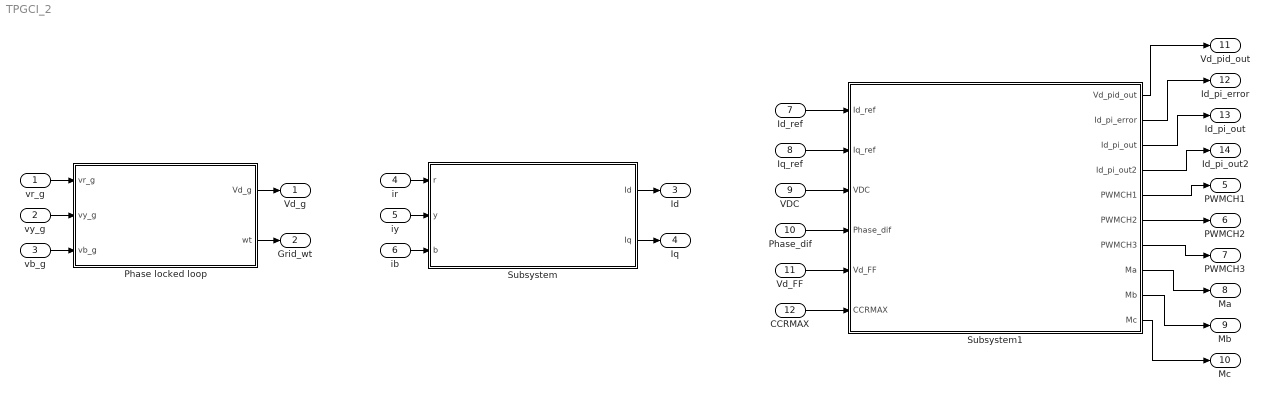
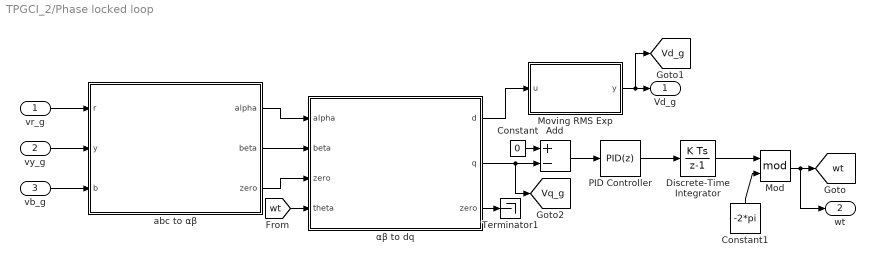
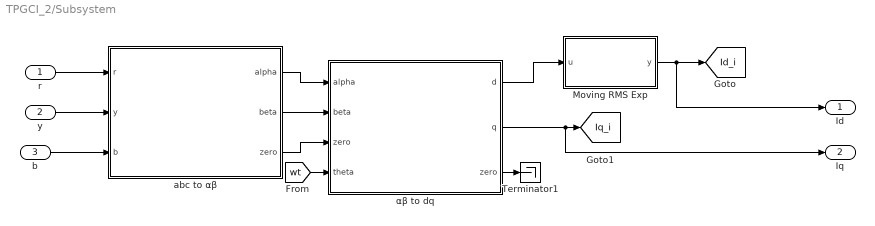
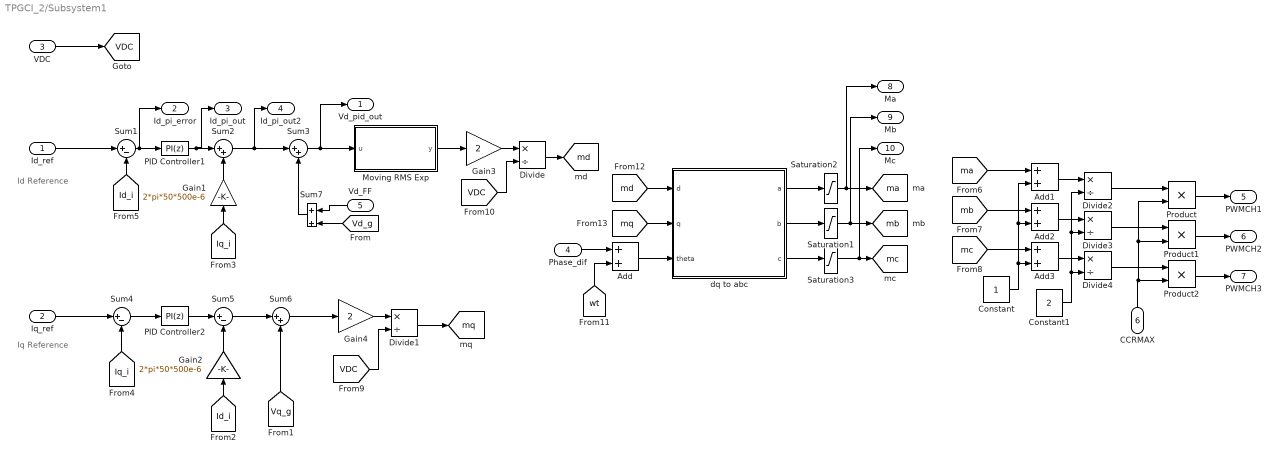
== matlab function TPGCI_2/Phase locked loop/αβ to dq ==
function [d, q, zero] = alphabeta_to_dq(alpha, beta, zero, theta) 
%ALPHABETA_TO_DQ Converts αβ0 voltages to dq0 using Park Transform
% Inputs:
%   v_alpha - Alpha axis voltage
%   v_beta  - Beta axis voltage
%   v_zero  - Zero sequence voltage
%   theta   - Rotational angle (radians)
% Outputs:
%   v_d     - Direct axis voltage
%   v_q     - Quadrature axis voltage
%   v_zero  - Zero sequence voltage (unchanged)

    % Precompute sine and cosine for efficiency
    cos_theta = cos(theta);
    sin_theta = sin(theta);

    % Compute dq0 components
    d =  alpha * cos_theta + beta * sin_theta;
    q = -alpha * sin_theta + beta * cos_theta;
    % v_zero remains the same
end

== matlab function TPGCI_2/Phase locked loop/abc to αβ ==
function [alpha, beta, zero] = abc_to_alphabeta(r, y, b) 
%#codegen
%ABC_TO_ALPHABETA Converts three-phase (ABC) voltages to αβ0 (Clark Transform)
% Inputs:
%   vr_g - Phase R voltage
%   vy_g - Phase Y voltage
%   vb_g - Phase B voltage
% Outputs:
%   v_alpha_g - Alpha axis voltage
%   v_beta_g  - Beta axis voltage
%   v_zero    - Zero sequence voltage
    % Precompute constants (avoiding divisions)
    k1 = 0.66666666667;  % 2/3
    k2 = 0.33333333333;  % 1/3
    k3 = 0.57735026919;  % sqrt(3)/3

    % Compute αβ0 components using direct arithmetic
    alpha = k1 * r - k2 * y - k2 * b;
    beta  = k3 * (y - b);
    zero    = k2 * (r + y + b);
end

== matlab function TPGCI_2/Phase locked loop/Moving RMS Exp ==
function y = movingRMSExp(u)
    % y = movingRMSExp(u, alpha)
    % This function computes the exponential moving RMS of the input signal `u`.
    % The parameter `alpha` is the smoothing factor (0 < alpha <= 1).
    % A higher `alpha` gives more weight to recent values.

    % Persistent variables to maintain state between calls
    persistent rmsSquared

    % Initialize the exponential moving RMS on the first call
    if isempty(rmsSquared)
        rmsSquared = u^2; % Initialize with the square of the first value

    end

    % Update the exponentially weighted RMS squared
    rmsSquared = 0.001 * u^2 + (1 - 0.001) * rmsSquared;

    % Compute the RMS as the square root of the weighted sum
    y = sqrt(rmsSquared);
end

== matlab function TPGCI_2/Subsystem/abc to αβ ==
function [alpha, beta, zero] = abc_to_alphabeta(r, y, b) 
%#codegen
%ABC_TO_ALPHABETA Converts three-phase (ABC) voltages to αβ0 (Clark Transform)
% Inputs:
%   vr_g - Phase R voltage
%   vy_g - Phase Y voltage
%   vb_g - Phase B voltage
% Outputs:
%   v_alpha_g - Alpha axis voltage
%   v_beta_g  - Beta axis voltage
%   v_zero    - Zero sequence voltage
    % Precompute constants (avoiding divisions)
    k1 = 0.66666666667;  % 2/3
    k2 = 0.33333333333;  % 1/3
    k3 = 0.57735026919;  % sqrt(3)/3

    % Compute αβ0 components using direct arithmetic
    alpha = k1 * r - k2 * y - k2 * b;
    beta  = k3 * (y - b);
    zero    = k2 * (r + y + b);
end

== matlab function TPGCI_2/Subsystem/αβ to dq ==
function [d, q, zero] = alphabeta_to_dq(alpha, beta, zero, theta) 
%ALPHABETA_TO_DQ Converts αβ0 voltages to dq0 using Park Transform
% Inputs:
%   v_alpha - Alpha axis voltage
%   v_beta  - Beta axis voltage
%   v_zero  - Zero sequence voltage
%   theta   - Rotational angle (radians)
% Outputs:
%   v_d     - Direct axis voltage
%   v_q     - Quadrature axis voltage
%   v_zero  - Zero sequence voltage (unchanged)

    % Precompute sine and cosine for efficiency
    cos_theta = cos(theta);
    sin_theta = sin(theta);

    % Compute dq0 components
    d =  alpha * cos_theta + beta * sin_theta;
    q = -alpha * sin_theta + beta * cos_theta;
    % v_zero remains the same
end

== matlab function TPGCI_2/Subsystem/Moving RMS Exp ==
function y = movingRMSExp(u)
    % y = movingRMSExp(u, alpha)
    % This function computes the exponential moving RMS of the input signal `u`.
    % The parameter `alpha` is the smoothing factor (0 < alpha <= 1).
    % A higher `alpha` gives more weight to recent values.

    % Persistent variables to maintain state between calls
    persistent rmsSquared

    % Initialize the exponential moving RMS on the first call
    if isempty(rmsSquared)
        rmsSquared = u^2; % Initialize with the square of the first value
    end

    % Update the exponentially weighted RMS squared
    rmsSquared = 0.001 * u^2 + (1 - 0.001) * rmsSquared;

    % Compute the RMS as the square root of the weighted sum
    y = sqrt(rmsSquared);
end

== matlab function TPGCI_2/Subsystem1/dq to abc ==
function [a, b, c] = dq_to_abc(d, q, theta)
%#codegen
% Converts dq0 frame to abc (three-phase) frame.

% Constants (Precomputed for efficiency)
TWO_PI_OVER_3 = 2.094395102393195;  % 2*pi/3
NEG_TWO_PI_OVER_3 = -2.094395102393195; % -2*pi/3

% Precompute sine and cosine values for efficiency
cos_theta = cos(theta);
sin_theta = sin(theta);

% Compute phase voltages using precomputed angles
a = d * cos_theta - q * sin_theta;
b = d * cos(theta + NEG_TWO_PI_OVER_3) - q * sin(theta + NEG_TWO_PI_OVER_3);
c = d * cos(theta + TWO_PI_OVER_3) - q * sin(theta + TWO_PI_OVER_3);

end

== matlab function TPGCI_2/Subsystem1/Moving RMS Exp ==
function y = movingRMSExp(u)
    % y = movingRMSExp(u, alpha)
    % This function computes the exponential moving RMS of the input signal `u`.
    % The parameter `alpha` is the smoothing factor (0 < alpha <= 1).
    % A higher `alpha` gives more weight to recent values.

    % Persistent variables to maintain state between calls
    persistent rmsSquared

    % Initialize the exponential moving RMS on the first call
    if isempty(rmsSquared)
        rmsSquared = u^2; % Initialize with the square of the first value
    end

    % Update the exponentially weighted RMS squared
    rmsSquared = 0.001 * u^2 + (1 - 0.001) * rmsSquared;

    % Compute the RMS as the square root of the weighted sum
    y = sqrt(rmsSquared);
end

/*
 * Academic License - for use in teaching, academic research, and meeting
 * course requirements at degree granting institutions only.  Not for
 * government, commercial, or other organizational use.
 *
 * File: TPGCI_2.c
 *
 * Code generated for Simulink model 'TPGCI_2'.
 *
 * Model version                  : 1.7
 * Simulink Coder version         : 24.1 (R2024a) 19-Nov-2023
 * C/C++ source code generated on : Thu Feb 27 17:58:24 2025
 *
 * Target selection: ert.tlc
 * Embedded hardware selection: ARM Compatible->ARM Cortex-M
 * Code generation objectives:
 *    1. Execution efficiency
 *    2. RAM efficiency
 * Validation result: Not run
 */

#include "TPGCI_2.h"
#include "rtwtypes.h"
#include <math.h>
#include <float.h>
#include "math.h"

/* Exported data definition */

/* Volatile memory section */
/* Definition for custom storage class: Volatile */
volatile real_T Grid_wt;               /* '<Root>/Grid_wt' */
volatile real_T PWMCH1;                /* '<Root>/PWMCH1' */
volatile real_T PWMCH2;                /* '<Root>/PWMCH2' */
volatile real_T PWMCH3;                /* '<Root>/PWMCH3' */
volatile real_T Vd_g;                  /* '<Root>/Vd_g' */
volatile real_T ib;                    /* '<Root>/ib' */
volatile real_T ir;                    /* '<Root>/ir' */
volatile real_T iy;                    /* '<Root>/iy' */
volatile real_T vb_g;                  /* '<Root>/vb_g' */
volatile real_T vr_g;                  /* '<Root>/vr_g' */
volatile real_T vy_g;                  /* '<Root>/vy_g' */

/* Block signals and states (default storage) */
DW rtDW;

/* External inputs (root inport signals with default storage) */
ExtU rtU;

/* External outputs (root outports fed by signals with default storage) */
ExtY rtY;

/* Real-time model */
static RT_MODEL rtM_;
RT_MODEL *const rtM = &rtM_;
extern real_T rt_modd_snf(real_T u0, real_T u1);
static void abcto(real_T rtu_r, real_T rtu_y, real_T rtu_b, real_T *rty_alpha,
                  real_T *rty_beta, real_T *rty_zero);
static void todq(real_T rtu_alpha, real_T rtu_beta, real_T rtu_theta, real_T
                 *rty_d, real_T *rty_q);
static void MovingRMSExp(real_T rtu_u, real_T *rty_y, DW_MovingRMSExp *localDW);
static real_T rtGetNaN(void);
static real32_T rtGetNaNF(void);
extern real_T rtInf;
extern real_T rtMinusInf;
extern real_T rtNaN;
extern real32_T rtInfF;
extern real32_T rtMinusInfF;
extern real32_T rtNaNF;
static boolean_T rtIsInf(real_T value);
static boolean_T rtIsInfF(real32_T value);
static boolean_T rtIsNaN(real_T value);
static boolean_T rtIsNaNF(real32_T value);
real_T rtNaN = -(real_T)NAN;
real_T rtInf = (real_T)INFINITY;
real_T rtMinusInf = -(real_T)INFINITY;
real32_T rtNaNF = -(real32_T)NAN;
real32_T rtInfF = (real32_T)INFINITY;
real32_T rtMinusInfF = -(real32_T)INFINITY;

/* Return rtNaN needed by the generated code. */
static real_T rtGetNaN(void)
{
  return rtNaN;
}

/* Return rtNaNF needed by the generated code. */
static real32_T rtGetNaNF(void)
{
  return rtNaNF;
}

/* Test if value is infinite */
static boolean_T rtIsInf(real_T value)
{
  return (boolean_T)((value==rtInf || value==rtMinusInf) ? 1U : 0U);
}

/* Test if single-precision value is infinite */
static boolean_T rtIsInfF(real32_T value)
{
  return (boolean_T)(((value)==rtInfF || (value)==rtMinusInfF) ? 1U : 0U);
}

/* Test if value is not a number */
static boolean_T rtIsNaN(real_T value)
{
  return (boolean_T)(isnan(value) != 0);
}

/* Test if single-precision value is not a number */
static boolean_T rtIsNaNF(real32_T value)
{
  return (boolean_T)(isnan(value) != 0);
}

/*
 * Output and update for atomic system:
 *    '<S1>/abc to &#x3B1;&#x3B2;'
 *    '<S2>/abc to &#x3B1;&#x3B2;'
 */
static void abcto(real_T rtu_r, real_T rtu_y, real_T rtu_b, real_T *rty_alpha,
                  real_T *rty_beta, real_T *rty_zero)
{
  *rty_alpha = (0.66666666667 * rtu_r - 0.33333333333 * rtu_y) - 0.33333333333 *
    rtu_b;
  *rty_beta = (rtu_y - rtu_b) * 0.57735026919;
  *rty_zero = ((rtu_r + rtu_y) + rtu_b) * 0.33333333333;
}

/*
 * Output and update for atomic system:
 *    '<S1>/&#x3B1;&#x3B2; to dq'
 *    '<S2>/&#x3B1;&#x3B2; to dq'
 */
static void todq(real_T rtu_alpha, real_T rtu_beta, real_T rtu_theta, real_T
                 *rty_d, real_T *rty_q)
{
  real_T cos_theta;
  real_T sin_theta;
  cos_theta = cos(rtu_theta);
  sin_theta = sin(rtu_theta);
  *rty_d = rtu_alpha * cos_theta + rtu_beta * sin_theta;
  *rty_q = -rtu_alpha * sin_theta + rtu_beta * cos_theta;
}

/*
 * Output and update for atomic system:
 *    '<S2>/Moving RMS Exp'
 *    '<S3>/Moving RMS Exp'
 */
static void MovingRMSExp(real_T rtu_u, real_T *rty_y, DW_MovingRMSExp *localDW)
{
  if (!localDW->rmsSquared_not_empty) {
    localDW->rmsSquared = rtu_u * rtu_u;
    localDW->rmsSquared_not_empty = true;
  }

  localDW->rmsSquared = rtu_u * rtu_u * 0.001 + 0.999 * localDW->rmsSquared;
  *rty_y = localDW->rmsSquared;
  *rty_y = sqrt(*rty_y);
}

real_T rt_modd_snf(real_T u0, real_T u1)
{
  real_T y;
  y = u0;
  if (u1 == 0.0) {
    if (u0 == 0.0) {
      y = u1;
    }
  } else if (rtIsNaN(u0) || rtIsNaN(u1) || rtIsInf(u0)) {
    y = (rtNaN);
  } else if (u0 == 0.0) {
    y = 0.0 / u1;
  } else if (rtIsInf(u1)) {
    if ((u1 < 0.0) != (u0 < 0.0)) {
      y = u1;
    }
  } else {
    boolean_T yEq;
    y = fmod(u0, u1);
    yEq = (y == 0.0);
    if ((!yEq) && (u1 > floor(u1))) {
      real_T q;
      q = fabs(u0 / u1);
      yEq = !(fabs(q - floor(q + 0.5)) > DBL_EPSILON * q);
    }

    if (yEq) {
      y = u1 * 0.0;
    } else if ((u0 < 0.0) != (u1 < 0.0)) {
      y += u1;
    }
  }

  return y;
}

/* Model step function */
void TPGCI_2_step(void)
{
  real_T rtb_Add;
  real_T rtb_Add_h;
  real_T rtb_Divide;
  real_T rtb_Divide1;
  real_T rtb_Filter;
  real_T rtb_Integrator_j;
  real_T rtb_Integrator_p;
  real_T rtb_Mod;
  real_T rtb_Sum3;
  real_T rtb_q_o;
  real_T rtb_y_d;
  real_T rtb_zero_au;

  /* MATLAB Function: '<S1>/abc to &#x3B1;&#x3B2;' incorporates:
   *  Inport: '<Root>/vb_g'
   *  Inport: '<Root>/vr_g'
   *  Inport: '<Root>/vy_g'
   */
  abcto(vr_g, vy_g, vb_g, &rtb_Filter, &rtb_Integrator_p, &rtb_zero_au);

  /* Math: '<S1>/Mod' incorporates:
   *  Constant: '<S1>/Constant1'
   *  DiscreteIntegrator: '<S1>/Discrete-Time Integrator'
   */
  rtb_Mod = rt_modd_snf(rtDW.DiscreteTimeIntegrator_DSTATE, -6.2831853071795862);

  /* MATLAB Function: '<S1>/&#x3B1;&#x3B2; to dq' */
  todq(rtb_Filter, rtb_Integrator_p, rtb_Mod, &rtb_Add_h, &rtb_q_o);

  /* MATLAB Function: '<S1>/Moving RMS Exp' */
  if (!rtDW.rmsSquared_not_empty) {
    rtDW.rmsSquared = rtb_Add_h * rtb_Add_h;
    rtDW.rmsSquared_not_empty = true;
  }

  rtDW.rmsSquared = rtb_Add_h * rtb_Add_h * 0.001 + 0.999 * rtDW.rmsSquared;
  rtb_y_d = sqrt(rtDW.rmsSquared);

  /* End of MATLAB Function: '<S1>/Moving RMS Exp' */

  /* Outport: '<Root>/Vd_g' */
  Vd_g = rtb_y_d;

  /* MATLAB Function: '<S2>/abc to &#x3B1;&#x3B2;' incorporates:
   *  Inport: '<Root>/ib'
   *  Inport: '<Root>/ir'
   *  Inport: '<Root>/iy'
   */
  abcto(ir, iy, ib, &rtb_Filter, &rtb_Integrator_p, &rtb_zero_au);

  /* MATLAB Function: '<S2>/&#x3B1;&#x3B2; to dq' incorporates:
   *  Outport: '<Root>/Iq'
   */
  todq(rtb_Filter, rtb_Integrator_p, rtb_Mod, &rtb_Add_h, &rtY.Iq);

  /* MATLAB Function: '<S2>/Moving RMS Exp' incorporates:
   *  Outport: '<Root>/Id'
   */
  MovingRMSExp(rtb_Add_h, &rtY.Id, &rtDW.sf_MovingRMSExp_h);

  /* Sum: '<S3>/Sum1' incorporates:
   *  Inport: '<Root>/Id_ref'
   *  Outport: '<Root>/Id'
   */
  rtb_Integrator_p = rtU.Id_ref - rtY.Id;

  /* Sum: '<S107>/Sum' incorporates:
   *  DiscreteIntegrator: '<S98>/Integrator'
   *  Gain: '<S103>/Proportional Gain'
   */
  rtb_zero_au = 0.01 * rtb_Integrator_p + rtDW.Integrator_DSTATE;

  /* Saturate: '<S105>/Saturation' */
  if (rtb_zero_au > 10.0) {
    rtb_zero_au = 10.0;
  } else if (rtb_zero_au < -10.0) {
    rtb_zero_au = -10.0;
  }

  /* End of Saturate: '<S105>/Saturation' */

  /* Sum: '<S3>/Sum2' incorporates:
   *  Gain: '<S3>/Gain1'
   *  Outport: '<Root>/Iq'
   */
  rtb_Integrator_j = 0.15707963267948966 * rtY.Iq + rtb_zero_au;

  /* Sum: '<S3>/Sum3' incorporates:
   *  Inport: '<Root>/Vd_FF'
   *  Sum: '<S3>/Sum7'
   */
  rtb_Sum3 = (rtU.Vd_FF + rtb_y_d) + rtb_Integrator_j;

  /* MATLAB Function: '<S3>/Moving RMS Exp' */
  MovingRMSExp(rtb_Sum3, &rtb_Add_h, &rtDW.sf_MovingRMSExp_e);

  /* Product: '<S3>/Divide' incorporates:
   *  Gain: '<S3>/Gain3'
   *  Inport: '<Root>/VDC'
   */
  rtb_Divide = 2.0 * rtb_Add_h / rtU.VDC;

  /* Sum: '<S3>/Sum4' incorporates:
   *  Inport: '<Root>/Iq_ref'
   *  Outport: '<Root>/Iq'
   */
  rtb_y_d = rtU.Iq_ref - rtY.Iq;

  /* Sum: '<S157>/Sum' incorporates:
   *  DiscreteIntegrator: '<S148>/Integrator'
   *  Gain: '<S153>/Proportional Gain'
   */
  rtb_Filter = 0.01 * rtb_y_d + rtDW.Integrator_DSTATE_e;

  /* Saturate: '<S155>/Saturation' */
  if (rtb_Filter > 10.0) {
    rtb_Filter = 10.0;
  } else if (rtb_Filter < -10.0) {
    rtb_Filter = -10.0;
  }

  /* Product: '<S3>/Divide1' incorporates:
   *  Gain: '<S3>/Gain2'
   *  Gain: '<S3>/Gain4'
   *  Inport: '<Root>/VDC'
   *  Outport: '<Root>/Id'
   *  Saturate: '<S155>/Saturation'
   *  Sum: '<S3>/Sum5'
   *  Sum: '<S3>/Sum6'
   */
  rtb_Divide1 = ((rtb_Filter - 0.15707963267948966 * rtY.Id) + rtb_q_o) * 2.0 /
    rtU.VDC;

  /* Sum: '<S3>/Add' incorporates:
   *  Inport: '<Root>/Phase_dif'
   */
  rtb_Add = rtU.Phase_dif + rtb_Mod;

  /* MATLAB Function: '<S3>/dq to abc' */
  rtb_Filter = rtb_Divide * cos(rtb_Add) - rtb_Divide1 * sin(rtb_Add);

  /* Saturate: '<S3>/Saturation2' */
  if (rtb_Filter > 0.95) {
    rtb_Filter = 0.95;
  } else if (rtb_Filter < -0.95) {
    rtb_Filter = -0.95;
  }

  /* End of Saturate: '<S3>/Saturation2' */

  /* Outport: '<Root>/PWMCH1' incorporates:
   *  Constant: '<S3>/Constant'
   *  Constant: '<S3>/Constant1'
   *  Inport: '<Root>/CCRMAX'
   *  Product: '<S3>/Divide2'
   *  Product: '<S3>/Product'
   *  Sum: '<S3>/Add1'
   */
  PWMCH1 = (rtb_Filter + 1.0) / 2.0 * rtU.CCRMAX;

  /* MATLAB Function: '<S3>/dq to abc' */
  rtb_Add_h = cos(rtb_Add - 2.0943951023931948) * rtb_Divide - sin(rtb_Add -
    2.0943951023931948) * rtb_Divide1;

  /* Saturate: '<S3>/Saturation1' */
  if (rtb_Add_h > 0.95) {
    rtb_Add_h = 0.95;
  } else if (rtb_Add_h < -0.95) {
    rtb_Add_h = -0.95;
  }

  /* End of Saturate: '<S3>/Saturation1' */

  /* Outport: '<Root>/PWMCH2' incorporates:
   *  Constant: '<S3>/Constant'
   *  Constant: '<S3>/Constant1'
   *  Inport: '<Root>/CCRMAX'
   *  Product: '<S3>/Divide3'
   *  Product: '<S3>/Product1'
   *  Sum: '<S3>/Add2'
   */
  PWMCH2 = (rtb_Add_h + 1.0) / 2.0 * rtU.CCRMAX;

  /* Outport: '<Root>/Mb' */
  rtY.Mb = rtb_Add_h;

  /* MATLAB Function: '<S3>/dq to abc' */
  rtb_Add_h = cos(rtb_Add + 2.0943951023931948) * rtb_Divide - sin(rtb_Add +
    2.0943951023931948) * rtb_Divide1;

  /* Saturate: '<S3>/Saturation3' */
  if (rtb_Add_h > 0.95) {
    rtb_Add_h = 0.95;
  } else if (rtb_Add_h < -0.95) {
    rtb_Add_h = -0.95;
  }

  /* End of Saturate: '<S3>/Saturation3' */

  /* Outport: '<Root>/PWMCH3' incorporates:
   *  Constant: '<S3>/Constant'
   *  Constant: '<S3>/Constant1'
   *  Inport: '<Root>/CCRMAX'
   *  Product: '<S3>/Divide4'
   *  Product: '<S3>/Product2'
   *  Sum: '<S3>/Add3'
   */
  PWMCH3 = (rtb_Add_h + 1.0) / 2.0 * rtU.CCRMAX;

  /* Outport: '<Root>/Mc' */
  rtY.Mc = rtb_Add_h;

  /* Outport: '<Root>/Ma' */
  rtY.Ma = rtb_Filter;

  /* Outport: '<Root>/Vd_pid_out' */
  rtY.Vd_pid_out = rtb_Sum3;

  /* Outport: '<Root>/Id_pi_out2' */
  rtY.Id_pi_out2 = rtb_Integrator_j;

  /* Outport: '<Root>/Id_pi_out' */
  rtY.Id_pi_out = rtb_zero_au;

  /* Outport: '<Root>/Id_pi_error' */
  rtY.Id_pi_error = rtb_Integrator_p;

  /* Gain: '<S44>/Filter Coefficient' incorporates:
   *  Constant: '<S1>/Constant'
   *  DiscreteIntegrator: '<S36>/Filter'
   *  Gain: '<S34>/Derivative Gain'
   *  Sum: '<S1>/Add'
   *  Sum: '<S36>/SumD'
   */
  rtb_Filter = ((0.0 - rtb_q_o) * 0.0 - rtDW.Filter_DSTATE) * 100.0;

  /* Outport: '<Root>/Grid_wt' */
  Grid_wt = rtb_Mod;

  /* Update for DiscreteIntegrator: '<S1>/Discrete-Time Integrator' incorporates:
   *  Constant: '<S1>/Constant'
   *  DiscreteIntegrator: '<S41>/Integrator'
   *  Gain: '<S46>/Proportional Gain'
   *  Sum: '<S1>/Add'
   *  Sum: '<S50>/Sum'
   */
  rtDW.DiscreteTimeIntegrator_DSTATE += (((0.0 - rtb_q_o) * 10.0 +
    rtDW.Integrator_DSTATE_p) + rtb_Filter) * 2.0E-5;

  /* Update for DiscreteIntegrator: '<S98>/Integrator' */
  rtDW.Integrator_DSTATE += 2.0E-5 * rtb_Integrator_p;
  if (rtDW.Integrator_DSTATE > 10.0) {
    rtDW.Integrator_DSTATE = 10.0;
  } else if (rtDW.Integrator_DSTATE < -10.0) {
    rtDW.Integrator_DSTATE = -10.0;
  }

  /* End of Update for DiscreteIntegrator: '<S98>/Integrator' */

  /* Update for DiscreteIntegrator: '<S148>/Integrator' */
  rtDW.Integrator_DSTATE_e += 2.0E-5 * rtb_y_d;
  if (rtDW.Integrator_DSTATE_e > 10.0) {
    rtDW.Integrator_DSTATE_e = 10.0;
  } else if (rtDW.Integrator_DSTATE_e < -10.0) {
    rtDW.Integrator_DSTATE_e = -10.0;
  }

  /* End of Update for DiscreteIntegrator: '<S148>/Integrator' */

  /* Update for DiscreteIntegrator: '<S36>/Filter' */
  rtDW.Filter_DSTATE += 2.0E-5 * rtb_Filter;

  /* Update for DiscreteIntegrator: '<S41>/Integrator' incorporates:
   *  Constant: '<S1>/Constant'
   *  Gain: '<S38>/Integral Gain'
   *  Sum: '<S1>/Add'
   */
  rtDW.Integrator_DSTATE_p += (0.0 - rtb_q_o) * 1000.0 * 2.0E-5;
}
